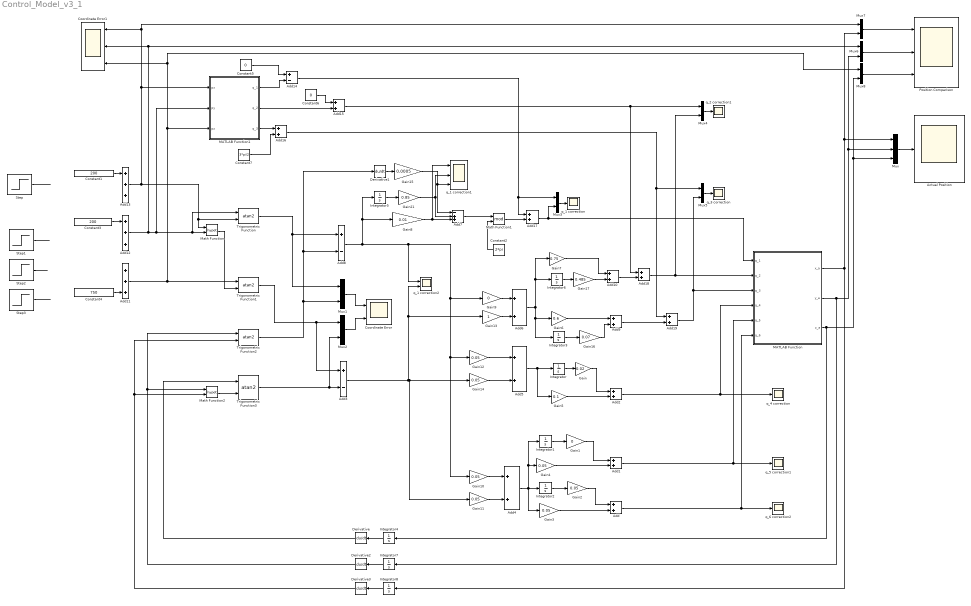
== matlab function Control_Model_v3_1/MATLAB Function1 ==
function [q_1, q_2, q_3] = fcn( px, py, pz)
%#codegen

D1 = 197.13;%275.5;
D2 = 410;
D3 = 207.3;
D4 = 74.1;
D5 = 74.1;
D6 = 160.0;
e2 = 9.8;
d1 = 197.13;
d2 = D2;
d3 = D3;

% q_3 +
%q_3__ = 1 * acos( (px^2 + (pz-d1)^2 - d2^2 - d3^2) / (2*d2*d3) );  

%cq_2 = (px*(d2+d3*cos(q_3__)) + d3*sin(q_3__)*(pz -d1)) / (d2^2 + d3^2 + 2*d2*d3*cos(q_3__));
%sq_2 = (-px*d3*sin(q_3__) + (d2+d3*cos(q_3__))*(pz -d1)) / (d2^2 + d3^2 + 2*d2*d3*cos(q_3__));
%q_2__ = (pi/2) - atan2(sq_2,cq_2);
%q_3__*180/pi
%q_2__*180/pi
% q_3 -

q_3 = 1 * acos( (px^2 + (pz-d1)^2 - d2^2 - d3^2) / (2*d2*d3) );  

cq_2 = (px*(d2+d3*cos(q_3)) + d3*sin(q_3)*(pz -d1)) / (d2^2 + d3^2 + 2*d2*d3*cos(q_3));
sq_2 = (-px*d3*sin(q_3) + (d2+d3*cos(q_3))*(pz -d1)) / (d2^2 + d3^2 + 2*d2*d3*cos(q_3));
q_2 = (pi/2) - atan2(sq_2,cq_2);

% q_1 offset
q_1 = atan2((py), px) - asin(e2 / ((px^2 + py^2)^.5));

== matlab function Control_Model_v3_1/MATLAB Function ==
function [x_a, y_a, z_a] = fcn(q_1, q_2, q_3, q_4, q_5, q_6)
%#codegen

q1 = q_1;%pi-(q_1);
q2 = q_2;%-pi/2 + (q_2+pi);
q3 = q_3;%pi/2 + (pi+q_3);
q4 = q_4;%q_4;
q5 = q_5;%-pi + q_5;
q6 = q_6;%pi + q_6;

%A_new = vpa(subs(A, [q1,q2,q3,q4,q5,q6], [ pi-(q_1), -pi/2 + (q_2+pi), pi/2 + (pi+q_3), q_4, -pi + q_5, pi]));


x_a = 9.8*sin(q1) + 410.0*cos(q1)*cos(q2) - 161.90703230275506147226218323136*cos(q4)*sin(q1) + 175.614064605510166451876962007*sin(q5)*(1.0*sin(q1)*sin(q4) - cos(q4)*(cos(q1)*cos(q2)*cos(q3) + cos(q1)*sin(q2)*sin(q3))) - 161.90703230275506147226218323136*sin(q4)*(cos(q1)*cos(q2)*cos(q3) + cos(q1)*sin(q2)*sin(q3)) - 175.614064605510166451876962007*cos(q5)*(0.5*cos(q4)*sin(q1) + 0.5*sin(q4)*(cos(q1)*cos(q2)*cos(q3) + cos(q1)*sin(q2)*sin(q3)) - 0.86602540378443864676372317075294*cos(q1)*cos(q2)*sin(q3) + 0.86602540378443864676372317075294*cos(q1)*cos(q3)*sin(q2)) - 343.55872363064032981583295622841*cos(q1)*cos(q2)*sin(q3) + 343.55872363064032981583295622841*cos(q1)*cos(q3)*sin(q2); 
y_a = 161.90703230275506147226218323136*cos(q1)*cos(q4) - 9.8*cos(q1) + 410.0*cos(q2)*sin(q1) + 175.614064605510166451876962007*cos(q5)*(0.5*cos(q1)*cos(q4) - 0.5*sin(q4)*(sin(q1)*sin(q2)*sin(q3) + cos(q2)*cos(q3)*sin(q1)) + 0.86602540378443864676372317075294*cos(q2)*sin(q1)*sin(q3) - 0.86602540378443864676372317075294*cos(q3)*sin(q1)*sin(q2)) - 175.614064605510166451876962007*sin(q5)*(1.0*cos(q1)*sin(q4) + cos(q4)*(sin(q1)*sin(q2)*sin(q3) + cos(q2)*cos(q3)*sin(q1))) - 161.90703230275506147226218323136*sin(q4)*(sin(q1)*sin(q2)*sin(q3) + cos(q2)*cos(q3)*sin(q1)) - 343.55872363064032981583295622841*cos(q2)*sin(q1)*sin(q3) + 343.55872363064032981583295622841*cos(q3)*sin(q1)*sin(q2);
z_a = 410.0*sin(q2) - 343.55872363064032981583295622841*cos(q2)*cos(q3) - 343.55872363064032981583295622841*sin(q2)*sin(q3) + 175.614064605510166451876962007*cos(q5)*(0.86602540378443864676372317075294*cos(q2)*cos(q3) + 0.86602540378443864676372317075294*sin(q2)*sin(q3) + 0.5*sin(q4)*(1.0*cos(q2)*sin(q3) - 1.0*cos(q3)*sin(q2))) + 161.90703230275506147226218323136*sin(q4)*(1.0*cos(q2)*sin(q3) - 1.0*cos(q3)*sin(q2)) + 175.614064605510166451876962007*cos(q4)*sin(q5)*(1.0*cos(q2)*sin(q3) - 1.0*cos(q3)*sin(q2)) + 197.13;




%y = u;

/*
 * Control_Model_v3_1.c
 *
 * Academic License - for use in teaching, academic research, and meeting
 * course requirements at degree granting institutions only.  Not for
 * government, commercial, or other organizational use.
 *
 * Code generation for model "Control_Model_v3_1".
 *
 * Model version              : 1.20
 * Simulink Coder version : 8.8 (R2015a) 09-Feb-2015
 * C source code generated on : Mon Jun 04 22:20:33 2018
 *
 * Target selection: rsim.tlc
 * Note: GRT includes extra infrastructure and instrumentation for prototyping
 * Embedded hardware selection: 32-bit Generic
 * Emulation hardware selection:
 *    Differs from embedded hardware (MATLAB Host)
 * Code generation objectives: Unspecified
 * Validation result: Not run
 */

#include <math.h>
#include "Control_Model_v3_1.h"
#include "Control_Model_v3_1_private.h"
#include "Control_Model_v3_1_dt.h"

/* user code (top of parameter file) */
const int_T gblNumToFiles = 0;
const int_T gblNumFrFiles = 0;
const int_T gblNumFrWksBlocks = 0;
const char *gblSlvrJacPatternFileName =
  "Control_Model_v3_1_rsim_rtw\\Control_Model_v3_1_Jpattern.mat";

/* Root inports information  */
const int_T gblNumRootInportBlks = 0;
const int_T gblNumModelInputs = 0;
extern rtInportTUtable *gblInportTUtables;
extern const char *gblInportFileName;
const int_T gblInportDataTypeIdx[] = { -1 };

const int_T gblInportDims[] = { -1 } ;

const int_T gblInportComplex[] = { -1 };

const int_T gblInportInterpoFlag[] = { -1 };

const int_T gblInportContinuous[] = { -1 };

#include "simstruc.h"
#include "fixedpoint.h"

/* Block signals (auto storage) */
B rtB;

/* Continuous states */
X rtX;

/* Block states (auto storage) */
DW rtDW;

/* Parent Simstruct */
static SimStruct model_S;
SimStruct *const rtS = &model_S;
real_T rt_atan2d_snf(real_T u0, real_T u1)
{
  real_T y;
  int32_T u0_0;
  int32_T u1_0;
  if (rtIsNaN(u0) || rtIsNaN(u1)) {
    y = (rtNaN);
  } else if (rtIsInf(u0) && rtIsInf(u1)) {
    if (u0 > 0.0) {
      u0_0 = 1;
    } else {
      u0_0 = -1;
    }

    if (u1 > 0.0) {
      u1_0 = 1;
    } else {
      u1_0 = -1;
    }

    y = atan2(u0_0, u1_0);
  } else if (u1 == 0.0) {
    if (u0 > 0.0) {
      y = RT_PI / 2.0;
    } else if (u0 < 0.0) {
      y = -(RT_PI / 2.0);
    } else {
      y = 0.0;
    }
  } else {
    y = atan2(u0, u1);
  }

  return y;
}

real_T rt_roundd_snf(real_T u)
{
  real_T y;
  if (fabs(u) < 4.503599627370496E+15) {
    if (u >= 0.5) {
      y = floor(u + 0.5);
    } else if (u > -0.5) {
      y = u * 0.0;
    } else {
      y = ceil(u - 0.5);
    }
  } else {
    y = u;
  }

  return y;
}

real_T rt_modd_snf(real_T u0, real_T u1)
{
  real_T y;
  real_T tmp;
  if (u1 == 0.0) {
    y = u0;
  } else if (!((!rtIsNaN(u0)) && (!rtIsInf(u0)) && ((!rtIsNaN(u1)) && (!rtIsInf
                (u1))))) {
    y = (rtNaN);
  } else {
    tmp = u0 / u1;
    if (u1 <= floor(u1)) {
      y = u0 - floor(tmp) * u1;
    } else if (fabs(tmp - rt_roundd_snf(tmp)) <= DBL_EPSILON * fabs(tmp)) {
      y = 0.0;
    } else {
      y = (tmp - floor(tmp)) * u1;
    }
  }

  return y;
}

real_T rt_hypotd_snf(real_T u0, real_T u1)
{
  real_T y;
  real_T a;
  a = fabs(u0);
  y = fabs(u1);
  if (a < y) {
    a /= y;
    y *= sqrt(a * a + 1.0);
  } else if (a > y) {
    y /= a;
    y = sqrt(y * y + 1.0) * a;
  } else {
    if (!rtIsNaN(y)) {
      y = a * 1.4142135623730951;
    }
  }

  return y;
}

/* Initial conditions for root system: '<Root>' */
void MdlInitialize(void)
{
  /* InitializeConditions for Integrator: '<Root>/Integrator7' */
  rtX.Integrator7_CSTATE = rtP.Integrator7_IC;

  /* InitializeConditions for Derivative: '<Root>/Derivative2' */
  rtDW.TimeStampA = (rtInf);
  rtDW.TimeStampB = (rtInf);

  /* InitializeConditions for Integrator: '<Root>/Integrator8' */
  rtX.Integrator8_CSTATE = rtP.Integrator8_IC;

  /* InitializeConditions for Derivative: '<Root>/Derivative3' */
  rtDW.TimeStampA_b = (rtInf);
  rtDW.TimeStampB_d = (rtInf);

  /* InitializeConditions for Derivative: '<Root>/Derivative1' */
  rtDW.TimeStampA_a = (rtInf);
  rtDW.TimeStampB_dw = (rtInf);

  /* InitializeConditions for Integrator: '<Root>/Integrator5' */
  rtX.Integrator5_CSTATE = rtP.Integrator5_IC;

  /* InitializeConditions for Integrator: '<Root>/Integrator4' */
  rtX.Integrator4_CSTATE = rtP.Integrator4_IC;

  /* InitializeConditions for Derivative: '<Root>/Derivative' */
  rtDW.TimeStampA_f = (rtInf);
  rtDW.TimeStampB_dj = (rtInf);

  /* InitializeConditions for Integrator: '<Root>/Integrator6' */
  rtX.Integrator6_CSTATE = rtP.Integrator6_IC;

  /* InitializeConditions for Integrator: '<Root>/Integrator3' */
  rtX.Integrator3_CSTATE = rtP.Integrator3_IC;

  /* InitializeConditions for Integrator: '<Root>/Integrator' */
  rtX.Integrator_CSTATE = rtP.Integrator_IC;

  /* InitializeConditions for Integrator: '<Root>/Integrator1' */
  rtX.Integrator1_CSTATE = rtP.Integrator1_IC;

  /* InitializeConditions for Integrator: '<Root>/Integrator2' */
  rtX.Integrator2_CSTATE = rtP.Integrator2_IC;
}

/* Start for root system: '<Root>' */
void MdlStart(void)
{
  /* Start for Scope: '<Root>/Coordinate Error' */
  {
    RTWLogSignalInfo rt_ScopeSignalInfo;
    static int_T rt_ScopeSignalWidths[] = { 2, 2 };

    static int_T rt_ScopeSignalNumDimensions[] = { 1, 1 };

    static int_T rt_ScopeSignalDimensions[] = { 2, 2 };

    static void *rt_ScopeCurrSigDims[] = { (NULL), (NULL) };

    static int_T rt_ScopeCurrSigDimsSize[] = { 4, 4 };

    static const char_T *rt_ScopeSignalLabels[] = { "",
      "" };

    static char_T rt_ScopeSignalTitles[] = "";
    static int_T rt_ScopeSignalTitleLengths[] = { 0, 0 };

    static boolean_T rt_ScopeSignalIsVarDims[] = { 0, 0 };

    static int_T rt_ScopeSignalPlotStyles[] = { 1, 0, 1, 0 };

    BuiltInDTypeId dTypes[2] = { SS_DOUBLE, SS_DOUBLE };

    static char_T rt_ScopeBlockName[] = "Control_Model_v3_1/Coordinate Error";
    rt_ScopeSignalInfo.numSignals = 2;
    rt_ScopeSignalInfo.numCols = rt_ScopeSignalWidths;
    rt_ScopeSignalInfo.numDims = rt_ScopeSignalNumDimensions;
    rt_ScopeSignalInfo.dims = rt_ScopeSignalDimensions;
    rt_ScopeSignalInfo.isVarDims = rt_ScopeSignalIsVarDims;
    rt_ScopeSignalInfo.currSigDims = rt_ScopeCurrSigDims;
    rt_ScopeSignalInfo.currSigDimsSize = rt_ScopeCurrSigDimsSize;
    rt_ScopeSignalInfo.dataTypes = dTypes;
    rt_ScopeSignalInfo.complexSignals = (NULL);
    rt_ScopeSignalInfo.frameData = (NULL);
    rt_ScopeSignalInfo.labels.cptr = rt_ScopeSignalLabels;
    rt_ScopeSignalInfo.titles = rt_ScopeSignalTitles;
    rt_ScopeSignalInfo.titleLengths = rt_ScopeSignalTitleLengths;
    rt_ScopeSignalInfo.plotStyles = rt_ScopeSignalPlotStyles;
    rt_ScopeSignalInfo.blockNames.cptr = (NULL);
    rt_ScopeSignalInfo.stateNames.cptr = (NULL);
    rt_ScopeSignalInfo.crossMdlRef = (NULL);
    rt_ScopeSignalInfo.dataTypeConvert = (NULL);
    rtDW.CoordinateError_PWORK.LoggedData = rt_CreateStructLogVar(
      ssGetRTWLogInfo(rtS),
      0.0,
      ssGetTFinal(rtS),
      ssGetStepSize(rtS),
      (&ssGetErrorStatus(rtS)),
      "error",
      1,
      0,
      1,
      0.002,
      &rt_ScopeSignalInfo,
      rt_ScopeBlockName);
    if (rtDW.CoordinateError_PWORK.LoggedData == (NULL))
      return;
  }

  /* Start for Scope: '<Root>/Position Comparison' */
  {
    RTWLogSignalInfo rt_ScopeSignalInfo;
    static int_T rt_ScopeSignalWidths[] = { 2, 2, 2 };

    static int_T rt_ScopeSignalNumDimensions[] = { 1, 1, 1 };

    static int_T rt_ScopeSignalDimensions[] = { 2, 2, 2 };

    static void *rt_ScopeCurrSigDims[] = { (NULL), (NULL), (NULL) };

    static int_T rt_ScopeCurrSigDimsSize[] = { 4, 4, 4 };

    static const char_T *rt_ScopeSignalLabels[] = { "",
      "",
      "" };

    static char_T rt_ScopeSignalTitles[] = "";
    static int_T rt_ScopeSignalTitleLengths[] = { 0, 0, 0 };

    static boolean_T rt_ScopeSignalIsVarDims[] = { 0, 0, 0 };

    static int_T rt_ScopeSignalPlotStyles[] = { 1, 0, 1, 0, 1, 0 };

    BuiltInDTypeId dTypes[3] = { SS_DOUBLE, SS_DOUBLE, SS_DOUBLE };

    static char_T rt_ScopeBlockName[] = "Control_Model_v3_1/Position Comparison";
    rt_ScopeSignalInfo.numSignals = 3;
    rt_ScopeSignalInfo.numCols = rt_ScopeSignalWidths;
    rt_ScopeSignalInfo.numDims = rt_ScopeSignalNumDimensions;
    rt_ScopeSignalInfo.dims = rt_ScopeSignalDimensions;
    rt_ScopeSignalInfo.isVarDims = rt_ScopeSignalIsVarDims;
    rt_ScopeSignalInfo.currSigDims = rt_ScopeCurrSigDims;
    rt_ScopeSignalInfo.currSigDimsSize = rt_ScopeCurrSigDimsSize;
    rt_ScopeSignalInfo.dataTypes = dTypes;
    rt_ScopeSignalInfo.complexSignals = (NULL);
    rt_ScopeSignalInfo.frameData = (NULL);
    rt_ScopeSignalInfo.labels.cptr = rt_ScopeSignalLabels;
    rt_ScopeSignalInfo.titles = rt_ScopeSignalTitles;
    rt_ScopeSignalInfo.titleLengths = rt_ScopeSignalTitleLengths;
    rt_ScopeSignalInfo.plotStyles = rt_ScopeSignalPlotStyles;
    rt_ScopeSignalInfo.blockNames.cptr = (NULL);
    rt_ScopeSignalInfo.stateNames.cptr = (NULL);
    rt_ScopeSignalInfo.crossMdlRef = (NULL);
    rt_ScopeSignalInfo.dataTypeConvert = (NULL);
    rtDW.PositionComparison_PWORK.LoggedData = rt_CreateStructLogVar(
      ssGetRTWLogInfo(rtS),
      0.0,
      ssGetTFinal(rtS),
      ssGetStepSize(rtS),
      (&ssGetErrorStatus(rtS)),
      "Position",
      1,
      0,
      1,
      0.002,
      &rt_ScopeSignalInfo,
      rt_ScopeBlockName);
    if (rtDW.PositionComparison_PWORK.LoggedData == (NULL))
      return;
  }

  MdlInitialize();
}

/* Outputs for root system: '<Root>' */
void MdlOutputs(int_T tid)
{
  /* local block i/o variables */
  real_T rtb_Add13;
  real_T rtb_Add12;
  real_T rtb_Add11;
  real_T *lastU;
  real_T rtb_Derivative2;
  real_T rtb_Derivative3;
  real_T rtb_Integrator2;
  real_T rtb_q_2;
  real_T rtb_q_3;
  if (ssIsSampleHit(rtS, 1, 0)) {
    /* Sum: '<Root>/Add13' incorporates:
     *  Constant: '<Root>/Constant1'
     */
    rtb_Add13 = rtP.Constant1_Value;

    /* Sum: '<Root>/Add12' incorporates:
     *  Constant: '<Root>/Constant3'
     */
    rtb_Add12 = rtP.Constant3_Value;

    /* Sum: '<Root>/Add11' incorporates:
     *  Constant: '<Root>/Constant4'
     */
    rtb_Add11 = rtP.Constant4_Value;

    /* MATLAB Function: '<Root>/MATLAB Function1' */
    /* MATLAB Function 'MATLAB Function1': '<S2>:1' */
    /* 275.5; */
    /* '<S2>:1:11' */
    /* '<S2>:1:12' */
    /*  q_3 + */
    /* q_3__ = 1 * acos( (px^2 + (pz-d1)^2 - d2^2 - d3^2) / (2*d2*d3) );   */
    /* cq_2 = (px*(d2+d3*cos(q_3__)) + d3*sin(q_3__)*(pz -d1)) / (d2^2 + d3^2 + 2*d2*d3*cos(q_3__)); */
    /* sq_2 = (-px*d3*sin(q_3__) + (d2+d3*cos(q_3__))*(pz -d1)) / (d2^2 + d3^2 + 2*d2*d3*cos(q_3__)); */
    /* q_2__ = (pi/2) - atan2(sq_2,cq_2); */
    /* q_3__*180/pi */
    /* q_2__*180/pi */
    /*  q_3 - */
    /* '<S2>:1:25' */
    rtb_q_3 = acos(((((rtb_Add11 - 197.13) * (rtb_Add11 - 197.13) + rtb_Add13 *
                      rtb_Add13) - 168100.0) - 42973.290000000008) / 169986.0);

    /* '<S2>:1:27' */
    /* '<S2>:1:28' */
    /* '<S2>:1:29' */
    rtb_q_2 = 1.5707963267948966 - rt_atan2d_snf(((207.3 * cos(rtb_q_3) + 410.0)
      * (rtb_Add11 - 197.13) + -rtb_Add13 * 207.3 * sin(rtb_q_3)) / (169986.0 *
      cos(rtb_q_3) + 211073.29), ((207.3 * cos(rtb_q_3) + 410.0) * rtb_Add13 +
      207.3 * sin(rtb_q_3) * (rtb_Add11 - 197.13)) / (169986.0 * cos(rtb_q_3) +
      211073.29));

    /* Sum: '<Root>/Add14' incorporates:
     *  Constant: '<Root>/Constant5'
     *  MATLAB Function: '<Root>/MATLAB Function1'
     */
    /*  q_1 offset */
    /* '<S2>:1:32' */
    rtB.Add14 = rtP.Constant5_Value - (rt_atan2d_snf(rtb_Add12, rtb_Add13) -
      asin(9.8 / sqrt(rtb_Add13 * rtb_Add13 + rtb_Add12 * rtb_Add12)));
  }

  /* Integrator: '<Root>/Integrator7' */
  rtB.Integrator7 = rtX.Integrator7_CSTATE;

  /* Derivative: '<Root>/Derivative2' */
  if ((rtDW.TimeStampA >= ssGetT(rtS)) && (rtDW.TimeStampB >= ssGetT(rtS))) {
    rtb_Derivative2 = 0.0;
  } else {
    rtb_Integrator2 = rtDW.TimeStampA;
    lastU = &rtDW.LastUAtTimeA;
    if (rtDW.TimeStampA < rtDW.TimeStampB) {
      if (rtDW.TimeStampB < ssGetT(rtS)) {
        rtb_Integrator2 = rtDW.TimeStampB;
        lastU = &rtDW.LastUAtTimeB;
      }
    } else {
      if (rtDW.TimeStampA >= ssGetT(rtS)) {
        rtb_Integrator2 = rtDW.TimeStampB;
        lastU = &rtDW.LastUAtTimeB;
      }
    }

    rtb_Derivative2 = (rtB.Integrator7 - *lastU) / (ssGetT(rtS) -
      rtb_Integrator2);
  }

  /* End of Derivative: '<Root>/Derivative2' */

  /* Integrator: '<Root>/Integrator8' */
  rtB.Integrator8 = rtX.Integrator8_CSTATE;

  /* Derivative: '<Root>/Derivative3' */
  if ((rtDW.TimeStampA_b >= ssGetT(rtS)) && (rtDW.TimeStampB_d >= ssGetT(rtS)))
  {
    rtb_Derivative3 = 0.0;
  } else {
    rtb_Integrator2 = rtDW.TimeStampA_b;
    lastU = &rtDW.LastUAtTimeA_k;
    if (rtDW.TimeStampA_b < rtDW.TimeStampB_d) {
      if (rtDW.TimeStampB_d < ssGetT(rtS)) {
        rtb_Integrator2 = rtDW.TimeStampB_d;
        lastU = &rtDW.LastUAtTimeB_n;
      }
    } else {
      if (rtDW.TimeStampA_b >= ssGetT(rtS)) {
        rtb_Integrator2 = rtDW.TimeStampB_d;
        lastU = &rtDW.LastUAtTimeB_n;
      }
    }

    rtb_Derivative3 = (rtB.Integrator8 - *lastU) / (ssGetT(rtS) -
      rtb_Integrator2);
  }

  /* End of Derivative: '<Root>/Derivative3' */

  /* Trigonometry: '<Root>/Trigonometric Function2' */
  rtB.TrigonometricFunction2 = rt_atan2d_snf(rtb_Derivative2, rtb_Derivative3);

  /* Derivative: '<Root>/Derivative1' */
  if ((rtDW.TimeStampA_a >= ssGetT(rtS)) && (rtDW.TimeStampB_dw >= ssGetT(rtS)))
  {
    rtb_Integrator2 = 0.0;
  } else {
    rtb_Integrator2 = rtDW.TimeStampA_a;
    lastU = &rtDW.LastUAtTimeA_i;
    if (rtDW.TimeStampA_a < rtDW.TimeStampB_dw) {
      if (rtDW.TimeStampB_dw < ssGetT(rtS)) {
        rtb_Integrator2 = rtDW.TimeStampB_dw;
        lastU = &rtDW.LastUAtTimeB_g;
      }
    } else {
      if (rtDW.TimeStampA_a >= ssGetT(rtS)) {
        rtb_Integrator2 = rtDW.TimeStampB_dw;
        lastU = &rtDW.LastUAtTimeB_g;
      }
    }

    rtb_Integrator2 = (rtB.TrigonometricFunction2 - *lastU) / (ssGetT(rtS) -
      rtb_Integrator2);
  }

  /* End of Derivative: '<Root>/Derivative1' */

  /* Gain: '<Root>/Gain15' */
  rtB.Gain15 = rtP.Gain15_Gain * rtb_Integrator2;

  /* Gain: '<Root>/Gain21' incorporates:
   *  Integrator: '<Root>/Integrator5'
   */
  rtB.Gain21 = rtP.Gain21_Gain * rtX.Integrator5_CSTATE;
  if (ssIsSampleHit(rtS, 1, 0)) {
    /* Trigonometry: '<Root>/Trigonometric Function' */
    rtB.TrigonometricFunction = rt_atan2d_snf(rtb_Add12, rtb_Add13);
  }

  /* Sum: '<Root>/Add8' */
  rtB.Add8 = rtB.TrigonometricFunction - rtB.TrigonometricFunction2;

  /* Gain: '<Root>/Gain8' */
  rtB.Gain8 = rtP.Gain8_Gain * rtB.Add8;

  /* Sum: '<Root>/Add17' incorporates:
   *  Constant: '<Root>/Constant2'
   *  Math: '<Root>/Math Function1'
   *  Sum: '<Root>/Add7'
   */
  rtB.Add17 = rt_modd_snf((rtB.Gain21 - rtB.Gain15) + rtB.Gain8,
    rtP.Constant2_Value) + rtB.Add14;
  if (ssIsSampleHit(rtS, 1, 0)) {
    /* Sum: '<Root>/Add15' incorporates:
     *  Constant: '<Root>/Constant6'
     */
    rtB.Add15 = rtP.Constant6_Value + rtb_q_2;

    /* Trigonometry: '<Root>/Trigonometric Function1' incorporates:
     *  Math: '<Root>/Math Function'
     */
    rtB.TrigonometricFunction1 = rt_atan2d_snf(rtb_Add11, rt_hypotd_snf
      (rtb_Add13, rtb_Add12));
  }

  /* Integrator: '<Root>/Integrator4' */
  rtB.Integrator4 = rtX.Integrator4_CSTATE;

  /* Derivative: '<Root>/Derivative' */
  if ((rtDW.TimeStampA_f >= ssGetT(rtS)) && (rtDW.TimeStampB_dj >= ssGetT(rtS)))
  {
    rtb_Integrator2 = 0.0;
  } else {
    rtb_Integrator2 = rtDW.TimeStampA_f;
    lastU = &rtDW.LastUAtTimeA_l;
    if (rtDW.TimeStampA_f < rtDW.TimeStampB_dj) {
      if (rtDW.TimeStampB_dj < ssGetT(rtS)) {
        rtb_Integrator2 = rtDW.TimeStampB_dj;
        lastU = &rtDW.LastUAtTimeB_l;
      }
    } else {
      if (rtDW.TimeStampA_f >= ssGetT(rtS)) {
        rtb_Integrator2 = rtDW.TimeStampB_dj;
        lastU = &rtDW.LastUAtTimeB_l;
      }
    }

    rtb_Integrator2 = (rtB.Integrator4 - *lastU) / (ssGetT(rtS) -
      rtb_Integrator2);
  }

  /* End of Derivative: '<Root>/Derivative' */

  /* Trigonometry: '<Root>/Trigonometric Function3' incorporates:
   *  Math: '<Root>/Math Function2'
   */
  rtB.TrigonometricFunction3 = rt_atan2d_snf(rtb_Integrator2, rt_hypotd_snf
    (rtb_Derivative2, rtb_Derivative3));

  /* Sum: '<Root>/Add3' */
  rtB.Add3 = rtB.TrigonometricFunction1 - rtB.TrigonometricFunction3;

  /* Sum: '<Root>/Add6' incorporates:
   *  Gain: '<Root>/Gain13'
   *  Gain: '<Root>/Gain9'
   */
  rtB.Add6 = rtP.Gain9_Gain * rtB.Add8 + rtP.Gain13_Gain * rtB.Add3;

  /* Sum: '<Root>/Add18' incorporates:
   *  Gain: '<Root>/Gain17'
   *  Gain: '<Root>/Gain7'
   *  Integrator: '<Root>/Integrator6'
   *  Sum: '<Root>/Add10'
   */
  rtB.Add18 = (rtP.Gain7_Gain * rtB.Add6 + rtP.Gain17_Gain *
               rtX.Integrator6_CSTATE) + rtB.Add15;
  if (ssIsSampleHit(rtS, 1, 0)) {
    /* Sum: '<Root>/Add16' incorporates:
     *  Constant: '<Root>/Constant7'
     */
    rtB.Add16 = rtb_q_3 + rtP.Constant7_Value;
  }

  /* Sum: '<Root>/Add19' incorporates:
   *  Gain: '<Root>/Gain16'
   *  Gain: '<Root>/Gain6'
   *  Integrator: '<Root>/Integrator3'
   *  Sum: '<Root>/Add9'
   */
  rtB.Add19 = (rtP.Gain6_Gain * rtB.Add6 + rtP.Gain16_Gain *
               rtX.Integrator3_CSTATE) + rtB.Add16;

  /* Sum: '<Root>/Add5' incorporates:
   *  Gain: '<Root>/Gain12'
   *  Gain: '<Root>/Gain14'
   */
  rtB.Add5 = rtP.Gain12_Gain * rtB.Add8 + rtP.Gain14_Gain * rtB.Add3;

  /* Sum: '<Root>/Add2' incorporates:
   *  Gain: '<Root>/Gain'
   *  Gain: '<Root>/Gain5'
   *  Integrator: '<Root>/Integrator'
   */
  rtB.Add2 = rtP.Gain_Gain * rtX.Integrator_CSTATE + rtP.Gain5_Gain * rtB.Add5;

  /* Sum: '<Root>/Add4' incorporates:
   *  Gain: '<Root>/Gain10'
   *  Gain: '<Root>/Gain11'
   */
  rtB.Add4 = rtP.Gain10_Gain * rtB.Add8 + rtP.Gain11_Gain * rtB.Add3;

  /* Sum: '<Root>/Add1' incorporates:
   *  Gain: '<Root>/Gain1'
   *  Gain: '<Root>/Gain4'
   *  Integrator: '<Root>/Integrator1'
   */
  rtB.Add1 = rtP.Gain1_Gain * rtX.Integrator1_CSTATE + rtP.Gain4_Gain * rtB.Add4;

  /* Sum: '<Root>/Add' incorporates:
   *  Gain: '<Root>/Gain2'
   *  Gain: '<Root>/Gain3'
   *  Integrator: '<Root>/Integrator2'
   */
  rtB.Add = rtP.Gain2_Gain * rtX.Integrator2_CSTATE + rtP.Gain3_Gain * rtB.Add4;

  /* MATLAB Function: '<Root>/MATLAB Function' */
  /* MATLAB Function 'MATLAB Function': '<S1>:1' */
  /* pi-(q_1); */
  /* -pi/2 + (q_2+pi); */
  /* pi/2 + (pi+q_3); */
  /* q_4; */
  /* -pi + q_5; */
  /* pi + q_6; */
  /* A_new = vpa(subs(A, [q1,q2,q3,q4,q5,q6], [ pi-(q_1), -pi/2 + (q_2+pi), pi/2 + (pi+q_3), q_4, -pi + q_5, pi])); */
  /* '<S1>:1:14' */
  rtB.x_a = (((((sin(rtB.Add17) * sin(rtB.Add2) - (cos(rtB.Add17) * cos
    (rtB.Add18) * cos(rtB.Add19) + cos(rtB.Add17) * sin(rtB.Add18) * sin
    (rtB.Add19)) * cos(rtB.Add2)) * (175.61406460551018 * sin(rtB.Add1)) +
                ((410.0 * cos(rtB.Add17) * cos(rtB.Add18) + 9.8 * sin(rtB.Add17))
                 - 161.90703230275506 * cos(rtB.Add2) * sin(rtB.Add17))) - (cos
    (rtB.Add17) * cos(rtB.Add18) * cos(rtB.Add19) + cos(rtB.Add17) * sin
    (rtB.Add18) * sin(rtB.Add19)) * (161.90703230275506 * sin(rtB.Add2))) -
              ((((cos(rtB.Add17) * cos(rtB.Add18) * cos(rtB.Add19) + cos
                  (rtB.Add17) * sin(rtB.Add18) * sin(rtB.Add19)) * (0.5 * sin
    (rtB.Add2)) + 0.5 * cos(rtB.Add2) * sin(rtB.Add17)) - 0.8660254037844386 *
                cos(rtB.Add17) * cos(rtB.Add18) * sin(rtB.Add19)) +
               0.8660254037844386 * cos(rtB.Add17) * cos(rtB.Add19) * sin
               (rtB.Add18)) * (175.61406460551018 * cos(rtB.Add1))) -
             343.55872363064032 * cos(rtB.Add17) * cos(rtB.Add18) * sin
             (rtB.Add19)) + 343.55872363064032 * cos(rtB.Add17) * cos(rtB.Add19)
    * sin(rtB.Add18);

  /* '<S1>:1:15' */
  rtB.y_a = (((((((0.5 * cos(rtB.Add17) * cos(rtB.Add2) - (sin(rtB.Add17) * sin
    (rtB.Add18) * sin(rtB.Add19) + cos(rtB.Add18) * cos(rtB.Add19) * sin
    (rtB.Add17)) * (0.5 * sin(rtB.Add2))) + 0.8660254037844386 * cos(rtB.Add18) *
                  sin(rtB.Add17) * sin(rtB.Add19)) - 0.8660254037844386 * cos
                 (rtB.Add19) * sin(rtB.Add17) * sin(rtB.Add18)) *
                (175.61406460551018 * cos(rtB.Add1)) + ((161.90703230275506 *
    cos(rtB.Add17) * cos(rtB.Add2) - 9.8 * cos(rtB.Add17)) + 410.0 * cos
    (rtB.Add18) * sin(rtB.Add17))) - ((sin(rtB.Add17) * sin(rtB.Add18) * sin
    (rtB.Add19) + cos(rtB.Add18) * cos(rtB.Add19) * sin(rtB.Add17)) * cos
    (rtB.Add2) + cos(rtB.Add17) * sin(rtB.Add2)) * (175.61406460551018 * sin
    (rtB.Add1))) - (sin(rtB.Add17) * sin(rtB.Add18) * sin(rtB.Add19) + cos
                    (rtB.Add18) * cos(rtB.Add19) * sin(rtB.Add17)) *
              (161.90703230275506 * sin(rtB.Add2))) - 343.55872363064032 * cos
             (rtB.Add18) * sin(rtB.Add17) * sin(rtB.Add19)) + 343.55872363064032
    * cos(rtB.Add19) * sin(rtB.Add17) * sin(rtB.Add18);

  /* '<S1>:1:16' */
  rtB.z_a = (((((0.8660254037844386 * cos(rtB.Add18) * cos(rtB.Add19) +
                 0.8660254037844386 * sin(rtB.Add18) * sin(rtB.Add19)) + (cos
    (rtB.Add18) * sin(rtB.Add19) - cos(rtB.Add19) * sin(rtB.Add18)) * (0.5 * sin
    (rtB.Add2))) * (175.61406460551018 * cos(rtB.Add1)) + ((410.0 * sin
    (rtB.Add18) - 343.55872363064032 * cos(rtB.Add18) * cos(rtB.Add19)) -
    343.55872363064032 * sin(rtB.Add18) * sin(rtB.Add19))) + (cos(rtB.Add18) *
    sin(rtB.Add19) - cos(rtB.Add19) * sin(rtB.Add18)) * (161.90703230275506 *
    sin(rtB.Add2))) + 175.61406460551018 * cos(rtB.Add2) * sin(rtB.Add1) * (cos
              (rtB.Add18) * sin(rtB.Add19) - cos(rtB.Add19) * sin(rtB.Add18))) +
    197.13;

  /* y = u; */
  if (ssIsSampleHit(rtS, 1, 0)) {
    /* Scope: '<Root>/Coordinate Error' */
    {
      StructLogVar *svar = (StructLogVar *)rtDW.CoordinateError_PWORK.LoggedData;
      LogVar *var = svar->signals.values;

      /* time */
      {
        double locTime = ssGetTaskTime(rtS,1);
        rt_UpdateLogVar((LogVar *)svar->time, &locTime, 0);
      }

      /* signals */
      {
        real_T up0[2];
        up0[0] = rtB.TrigonometricFunction;
        up0[1] = rtB.TrigonometricFunction2;
        rt_UpdateLogVar((LogVar *)var, up0, 0);
        var = var->next;
      }

      {
        real_T up1[2];
        up1[0] = rtB.TrigonometricFunction1;
        up1[1] = rtB.TrigonometricFunction3;
        rt_UpdateLogVar((LogVar *)var, up1, 0);
      }
    }

    /* Scope: '<Root>/Position Comparison' */
    {
      StructLogVar *svar = (StructLogVar *)
        rtDW.PositionComparison_PWORK.LoggedData;
      LogVar *var = svar->signals.values;

      /* time */
      {
        double locTime = ssGetTaskTime(rtS,1);
        rt_UpdateLogVar((LogVar *)svar->time, &locTime, 0);
      }

      /* signals */
      {
        real_T up0[2];
        up0[0] = rtb_Add13;
        up0[1] = rtB.x_a;
        rt_UpdateLogVar((LogVar *)var, up0, 0);
        var = var->next;
      }

      {
        real_T up1[2];
        up1[0] = rtb_Add12;
        up1[1] = rtB.y_a;
        rt_UpdateLogVar((LogVar *)var, up1, 0);
        var = var->next;
      }

      {
        real_T up2[2];
        up2[0] = rtb_Add11;
        up2[1] = rtB.z_a;
        rt_UpdateLogVar((LogVar *)var, up2, 0);
      }
    }
  }

  UNUSED_PARAMETER(tid);
}

/* Update for root system: '<Root>' */
void MdlUpdate(int_T tid)
{
  real_T *lastU;

  /* Update for Derivative: '<Root>/Derivative2' */
  if (rtDW.TimeStampA == (rtInf)) {
    rtDW.TimeStampA = ssGetT(rtS);
    lastU = &rtDW.LastUAtTimeA;
  } else if (rtDW.TimeStampB == (rtInf)) {
    rtDW.TimeStampB = ssGetT(rtS);
    lastU = &rtDW.LastUAtTimeB;
  } else if (rtDW.TimeStampA < rtDW.TimeStampB) {
    rtDW.TimeStampA = ssGetT(rtS);
    lastU = &rtDW.LastUAtTimeA;
  } else {
    rtDW.TimeStampB = ssGetT(rtS);
    lastU = &rtDW.LastUAtTimeB;
  }

  *lastU = rtB.Integrator7;

  /* End of Update for Derivative: '<Root>/Derivative2' */

  /* Update for Derivative: '<Root>/Derivative3' */
  if (rtDW.TimeStampA_b == (rtInf)) {
    rtDW.TimeStampA_b = ssGetT(rtS);
    lastU = &rtDW.LastUAtTimeA_k;
  } else if (rtDW.TimeStampB_d == (rtInf)) {
    rtDW.TimeStampB_d = ssGetT(rtS);
    lastU = &rtDW.LastUAtTimeB_n;
  } else if (rtDW.TimeStampA_b < rtDW.TimeStampB_d) {
    rtDW.TimeStampA_b = ssGetT(rtS);
    lastU = &rtDW.LastUAtTimeA_k;
  } else {
    rtDW.TimeStampB_d = ssGetT(rtS);
    lastU = &rtDW.LastUAtTimeB_n;
  }

  *lastU = rtB.Integrator8;

  /* End of Update for Derivative: '<Root>/Derivative3' */

  /* Update for Derivative: '<Root>/Derivative1' */
  if (rtDW.TimeStampA_a == (rtInf)) {
    rtDW.TimeStampA_a = ssGetT(rtS);
    lastU = &rtDW.LastUAtTimeA_i;
  } else if (rtDW.TimeStampB_dw == (rtInf)) {
    rtDW.TimeStampB_dw = ssGetT(rtS);
    lastU = &rtDW.LastUAtTimeB_g;
  } else if (rtDW.TimeStampA_a < rtDW.TimeStampB_dw) {
    rtDW.TimeStampA_a = ssGetT(rtS);
    lastU = &rtDW.LastUAtTimeA_i;
  } else {
    rtDW.TimeStampB_dw = ssGetT(rtS);
    lastU = &rtDW.LastUAtTimeB_g;
  }

  *lastU = rtB.TrigonometricFunction2;

  /* End of Update for Derivative: '<Root>/Derivative1' */

  /* Update for Derivative: '<Root>/Derivative' */
  if (rtDW.TimeStampA_f == (rtInf)) {
    rtDW.TimeStampA_f = ssGetT(rtS);
    lastU = &rtDW.LastUAtTimeA_l;
  } else if (rtDW.TimeStampB_dj == (rtInf)) {
    rtDW.TimeStampB_dj = ssGetT(rtS);
    lastU = &rtDW.LastUAtTimeB_l;
  } else if (rtDW.TimeStampA_f < rtDW.TimeStampB_dj) {
    rtDW.TimeStampA_f = ssGetT(rtS);
    lastU = &rtDW.LastUAtTimeA_l;
  } else {
    rtDW.TimeStampB_dj = ssGetT(rtS);
    lastU = &rtDW.LastUAtTimeB_l;
  }

  *lastU = rtB.Integrator4;

  /* End of Update for Derivative: '<Root>/Derivative' */
  UNUSED_PARAMETER(tid);
}
